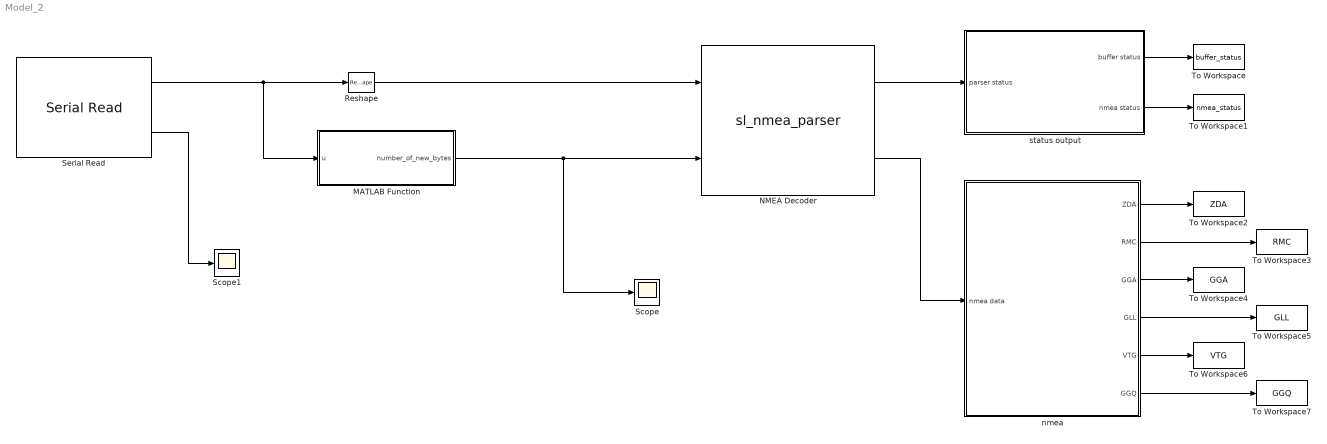
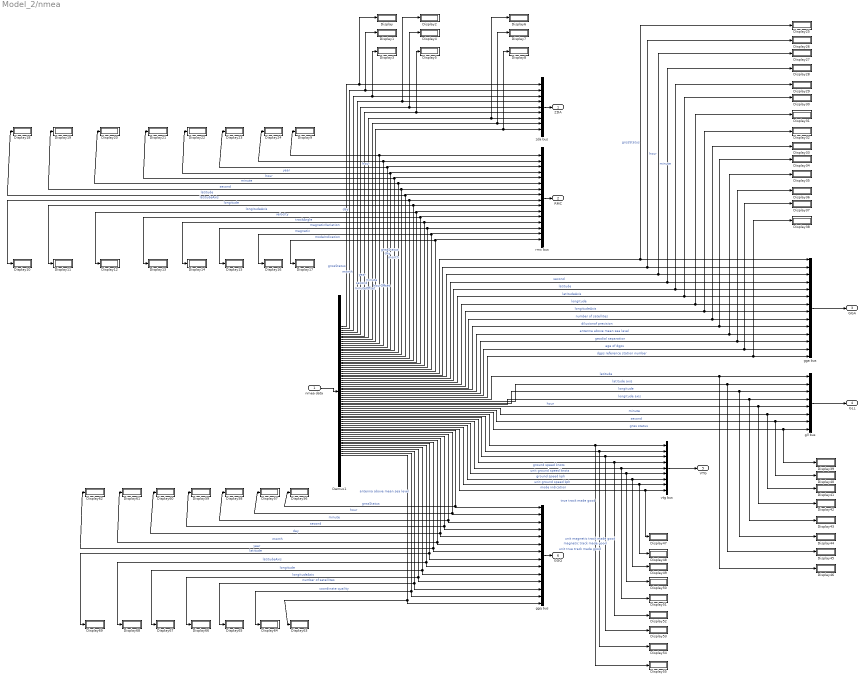
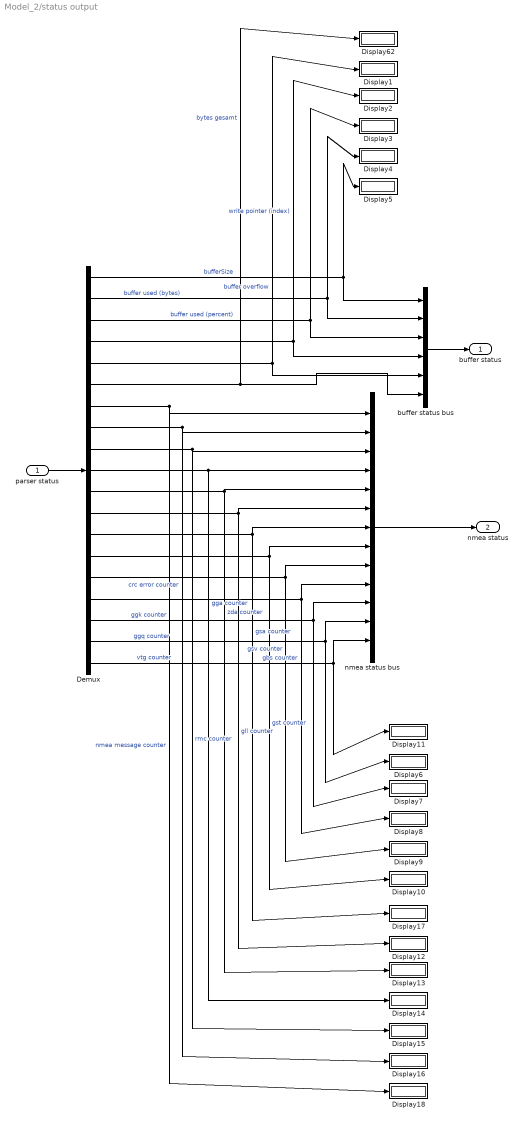
== matlab function Model_2/MATLAB Function ==
function number_of_new_bytes = fcn(u)
% number_of_new_bytes = 1;
a=find(u>0,1,'last');
if isempty(a)
    a=0;
end
number_of_new_bytes = uint32(a(1));

/*
 * Academic License - for use in teaching, academic research, and meeting
 * course requirements at degree granting institutions only.  Not for
 * government, commercial, or other organizational use.
 *
 * File: Model_2.c
 *
 * Code generated for Simulink model 'Model_2'.
 *
 * Model version                  : 1.22
 * Simulink Coder version         : 8.13 (R2017b) 24-Jul-2017
 * C/C++ source code generated on : Wed Apr 11 14:13:57 2018
 *
 * Target selection: ert.tlc
 * Embedded hardware selection: ARM Compatible->ARM Cortex
 * Code generation objectives: Unspecified
 * Validation result: Not run
 */

#include "Model_2.h"
#include "Model_2_private.h"
#include "Model_2_dt.h"

/* Block signals (auto storage) */
B_Model_2_T Model_2_B;

/* Block states (auto storage) */
DW_Model_2_T Model_2_DW;

/* Real-time model */
RT_MODEL_Model_2_T Model_2_M_;
RT_MODEL_Model_2_T *const Model_2_M = &Model_2_M_;

/* Model step function */
void Model_2_step(void)
{
  int16_T a_data;
  int16_T ii_data;
  int32_T b_ii;
  boolean_T p;
  boolean_T p_0;
  int32_T i;
  int32_T ii_size_idx_0;
  boolean_T exitg1;

  /* MATLABSystem: '<Root>/Serial Read' */
  p = false;
  p_0 = true;
  if (!(Model_2_DW.obj.SampleTime == Model_2_P.SerialRead_SampleTime)) {
    p_0 = false;
  }

  if (p_0) {
    p = true;
  }

  if (!p) {
    Model_2_DW.obj.SampleTime = Model_2_P.SerialRead_SampleTime;
  }

  Model_2_B.SerialRead_o2 = MW_SCI_Receive(Model_2_DW.obj.MW_SCIHANDLE,
    Model_2_B.RxDataLocChar, 300U);
  memcpy((void *)&Model_2_B.RxData[0], (void *)&Model_2_B.RxDataLocChar[0],
         (uint32_T)((size_t)300 * sizeof(uint8_T)));
  for (i = 0; i < 300; i++) {
    Model_2_B.SerialRead_o1[i] = Model_2_B.RxData[i];

    /* MATLAB Function: '<Root>/MATLAB Function' */
    Model_2_B.x[i] = (Model_2_B.SerialRead_o1[i] > 0);
  }

  /* End of MATLABSystem: '<Root>/Serial Read' */

  /* MATLAB Function: '<Root>/MATLAB Function' */
  i = 0;
  ii_size_idx_0 = 1;
  b_ii = 300;
  exitg1 = false;
  while ((!exitg1) && (b_ii > 0)) {
    if (Model_2_B.x[b_ii - 1]) {
      i = 1;
      ii_data = (int16_T)b_ii;
      exitg1 = true;
    } else {
      b_ii--;
    }
  }

  if (i == 0) {
    ii_size_idx_0 = 0;
  }

  if (0 <= ii_size_idx_0 - 1) {
    memcpy(&a_data, &ii_data, ii_size_idx_0 * sizeof(int16_T));
  }

  if (ii_size_idx_0 == 0) {
    a_data = 0;
  }

  Model_2_B.number_of_new_bytes = (uint32_T)a_data;

  /* S-Function (sl_nmea_parser): '<Root>/NMEA Decoder' */

  /* Level2 S-Function Block: '<Root>/NMEA Decoder' (sl_nmea_parser) */
  {
    SimStruct *rts = Model_2_M->childSfunctions[0];
    sfcnOutputs(rts,0);
  }

  /* External mode */
  rtExtModeUploadCheckTrigger(1);

  {                                    /* Sample time: [0.1s, 0.0s] */
    rtExtModeUpload(0, Model_2_M->Timing.t[0]);
  }

  /* signal main to stop simulation */
  {                                    /* Sample time: [0.1s, 0.0s] */
    if ((rtmGetTFinal(Model_2_M)!=-1) &&
        !((rtmGetTFinal(Model_2_M)-Model_2_M->Timing.t[0]) > Model_2_M->
          Timing.t[0] * (DBL_EPSILON))) {
      rtmSetErrorStatus(Model_2_M, "Simulation finished");
    }

    if (rtmGetStopRequested(Model_2_M)) {
      rtmSetErrorStatus(Model_2_M, "Simulation finished");
    }
  }

  /* Update absolute time for base rate */
  /* The "clockTick0" counts the number of times the code of this task has
   * been executed. The absolute time is the multiplication of "clockTick0"
   * and "Timing.stepSize0". Size of "clockTick0" ensures timer will not
   * overflow during the application lifespan selected.
   */
  Model_2_M->Timing.t[0] =
    (++Model_2_M->Timing.clockTick0) * Model_2_M->Timing.stepSize0;
}
